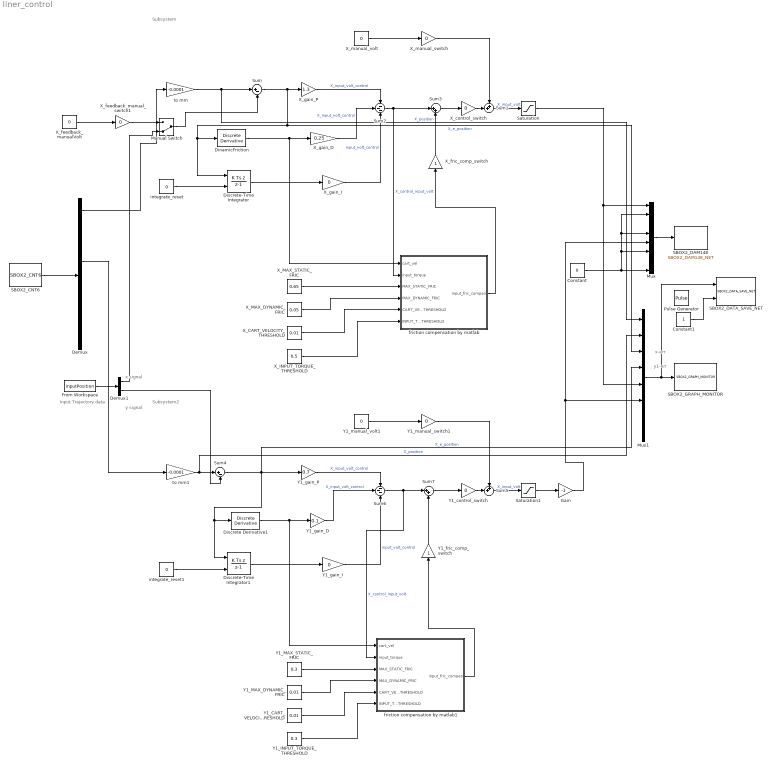
== matlab function liner_control/friction compensation by matlab ==
function input_fric_compen = fcn(cart_vel, input_torque, MAX_STATIC_FRIC, MAX_DYNAMIC_FRIC, CART_VELOCITY_THRESHOLD, INPUT_TORQUE_THRESHOLD)

input_fric_compen = zeros(1);

if abs(cart_vel) < CART_VELOCITY_THRESHOLD
    if input_torque > INPUT_TORQUE_THRESHOLD
        input_fric_compen = MAX_STATIC_FRIC * 0.9;
    else
        if input_torque < -INPUT_TORQUE_THRESHOLD
            input_fric_compen = - MAX_STATIC_FRIC * 0.9;
        else
            input_fric_compen = 0.0;
        end
    end
else
    if cart_vel > 0.0
        input_fric_compen = MAX_DYNAMIC_FRIC * 0.9;
    elseif cart_vel < 0.0
        input_fric_compen = - MAX_DYNAMIC_FRIC * 0.9;
    end
end

end

== matlab function liner_control/friction compensation by matlab1 ==
function input_fric_compen = fcn(cart_vel, input_torque, MAX_STATIC_FRIC, MAX_DYNAMIC_FRIC, CART_VELOCITY_THRESHOLD, INPUT_TORQUE_THRESHOLD)

input_fric_compen = zeros(1);

if abs(cart_vel) < CART_VELOCITY_THRESHOLD
    if input_torque > INPUT_TORQUE_THRESHOLD
        input_fric_compen = MAX_STATIC_FRIC * 0.9;
    else
        if input_torque < -INPUT_TORQUE_THRESHOLD
            input_fric_compen = - MAX_STATIC_FRIC * 0.9;
        else
            input_fric_compen = 0.0;
        end
    end
else
    if cart_vel > 0.0
        input_fric_compen = MAX_DYNAMIC_FRIC * 0.9;
    elseif cart_vel < 0.0
        input_fric_compen = - MAX_DYNAMIC_FRIC * 0.9;
    end
end

end

/*
 * liner_control.c
 *
 * Academic License - for use in teaching, academic research, and meeting
 * course requirements at degree granting institutions only.  Not for
 * government, commercial, or other organizational use.
 *
 * Code generation for model "liner_control".
 *
 * Model version              : 1.126
 * Simulink Coder version : 9.2 (R2019b) 18-Jul-2019
 * C source code generated on : Thu Jan 20 12:52:32 2022
 *
 * Target selection: sbox2.tlc
 * Note: GRT includes extra infrastructure and instrumentation for prototyping
 * Embedded hardware selection: 32-bit Generic
 * Code generation objectives: Unspecified
 * Validation result: Not run
 */

#include "liner_control_capi.h"
#include "liner_control.h"
#include "liner_control_private.h"

/* Block signals (default storage) */
B_liner_control_T liner_control_B;

/* Block states (default storage) */
DW_liner_control_T liner_control_DW;

/* Real-time model */
RT_MODEL_liner_control_T liner_control_M_;
RT_MODEL_liner_control_T *const liner_control_M = &liner_control_M_;
static void rate_scheduler(void);

/*
 *   This function updates active task flag for each subrate.
 * The function is called at model base rate, hence the
 * generated code self-manages all its subrates.
 */
static void rate_scheduler(void)
{
  /* Compute which subrates run during the next base time step.  Subrates
   * are an integer multiple of the base rate counter.  Therefore, the subtask
   * counter is reset when it reaches its limit (zero means run).
   */
  (liner_control_M->Timing.TaskCounters.TID[1])++;
  if ((liner_control_M->Timing.TaskCounters.TID[1]) > 99) {/* Sample time: [1.0s, 0.0s] */
    liner_control_M->Timing.TaskCounters.TID[1] = 0;
  }

  liner_control_M->Timing.sampleHits[1] =
    (liner_control_M->Timing.TaskCounters.TID[1] == 0);
}

/*
 * Output and update for atomic system:
 *    '<Root>/friction compensation by matlab'
 *    '<Root>/friction compensation by matlab1'
 */
void li_frictioncompensationbymatlab(real_T rtu_cart_vel, real_T
  rtu_input_torque, real_T rtu_MAX_STATIC_FRIC, real_T rtu_MAX_DYNAMIC_FRIC,
  real_T rtu_CART_VELOCITY_THRESHOLD, real_T rtu_INPUT_TORQUE_THRESHOLD,
  B_frictioncompensationbymatla_T *localB)
{
  /* MATLAB Function 'friction compensation by matlab': '<S7>:1' */
  /* '<S7>:1:3' */
  localB->input_fric_compen = 0.0;
  if (fabs(rtu_cart_vel) < rtu_CART_VELOCITY_THRESHOLD) {
    /* '<S7>:1:5' */
    if (rtu_input_torque > rtu_INPUT_TORQUE_THRESHOLD) {
      /* '<S7>:1:6' */
      /* '<S7>:1:7' */
      localB->input_fric_compen = rtu_MAX_STATIC_FRIC * 0.9;
    } else if (rtu_input_torque < -rtu_INPUT_TORQUE_THRESHOLD) {
      /* '<S7>:1:9' */
      /* '<S7>:1:10' */
      localB->input_fric_compen = -rtu_MAX_STATIC_FRIC * 0.9;
    } else {
      /* '<S7>:1:12' */
      localB->input_fric_compen = 0.0;
    }
  } else if (rtu_cart_vel > 0.0) {
    /* '<S7>:1:16' */
    /* '<S7>:1:17' */
    localB->input_fric_compen = rtu_MAX_DYNAMIC_FRIC * 0.9;
  } else {
    if (rtu_cart_vel < 0.0) {
      /* '<S7>:1:18' */
      /* '<S7>:1:19' */
      localB->input_fric_compen = -rtu_MAX_DYNAMIC_FRIC * 0.9;
    }
  }
}

/* Model step function */
void liner_control_step(void)
{
  real_T y;

  /* Gain: '<Root>/X_manual_switch' incorporates:
   *  Constant: '<Root>/X_manual_volt'
   */
  liner_control_B.X_manual_switch = liner_control_P.X_manual_switch_Gain *
    liner_control_P.X_manual_volt_Value;

  /* S-Function (udcm6_sep): '<S3>/icounter' */

  /* Level2 S-Function Block: '<S3>/icounter' (udcm6_sep) */
  {
    SimStruct *rts = liner_control_M->childSfunctions[0];
    sfcnOutputs(rts,0);
  }

  /* Gain: '<Root>/to mm' */
  liner_control_B.X_position = liner_control_P.tomm_Gain *
    liner_control_B.icounter[0];

  /* FromWorkspace: '<Root>/From Workspace' */
  {
    real_T *pDataValues = (real_T *)
      liner_control_DW.FromWorkspace_PWORK.DataPtr;
    real_T *pTimeValues = (real_T *)
      liner_control_DW.FromWorkspace_PWORK.TimePtr;
    int_T currTimeIndex = liner_control_DW.FromWorkspace_IWORK.PrevIndex;
    real_T t = liner_control_M->Timing.t[0];

    /* Get index */
    if (t <= pTimeValues[0]) {
      currTimeIndex = 0;
    } else if (t >= pTimeValues[300]) {
      currTimeIndex = 299;
    } else {
      if (t < pTimeValues[currTimeIndex]) {
        while (t < pTimeValues[currTimeIndex]) {
          currTimeIndex--;
        }
      } else {
        while (t >= pTimeValues[currTimeIndex + 1]) {
          currTimeIndex++;
        }
      }
    }

    liner_control_DW.FromWorkspace_IWORK.PrevIndex = currTimeIndex;

    /* Post output */
    {
      real_T t1 = pTimeValues[currTimeIndex];
      real_T t2 = pTimeValues[currTimeIndex + 1];
      if (t1 == t2) {
        if (t < t1) {
          {
            int_T elIdx;
            for (elIdx = 0; elIdx < 2; ++elIdx) {
              (&liner_control_B.FromWorkspace[0])[elIdx] =
                pDataValues[currTimeIndex];
              pDataValues += 301;
            }
          }
        } else {
          {
            int_T elIdx;
            for (elIdx = 0; elIdx < 2; ++elIdx) {
              (&liner_control_B.FromWorkspace[0])[elIdx] =
                pDataValues[currTimeIndex + 1];
              pDataValues += 301;
            }
          }
        }
      } else {
        real_T f1 = (t2 - t) / (t2 - t1);
        real_T f2 = 1.0 - f1;
        real_T d1;
        real_T d2;
        int_T TimeIndex= currTimeIndex;

        {
          int_T elIdx;
          for (elIdx = 0; elIdx < 2; ++elIdx) {
            d1 = pDataValues[TimeIndex];
            d2 = pDataValues[TimeIndex + 1];
            (&liner_control_B.FromWorkspace[0])[elIdx] = (real_T) rtInterpolate
              (d1, d2, f1, f2);
            pDataValues += 301;
          }
        }
      }
    }
  }

  /* ManualSwitch: '<Root>/Manual Switch' */
  if (liner_control_P.ManualSwitch_CurrentSetting == 1) {
    /* Gain: '<Root>/X_feedback_manual_switch1' incorporates:
     *  Constant: '<Root>/X_feedback_manualVolt'
     */
    liner_control_B.X_feedback_manual_switch1 =
      liner_control_P.X_feedback_manual_switch1_Gain *
      liner_control_P.X_feedback_manualVolt_Value;
    liner_control_B.ManualSwitch = liner_control_B.X_feedback_manual_switch1;
  } else {
    liner_control_B.ManualSwitch = liner_control_B.FromWorkspace[0];
  }

  /* End of ManualSwitch: '<Root>/Manual Switch' */

  /* Sum: '<Root>/Sum' */
  liner_control_B.X_e_position = liner_control_B.X_position -
    liner_control_B.ManualSwitch;

  /* Gain: '<Root>/X_gain_P' */
  liner_control_B.X_input_volt_control = liner_control_P.X_gain_P_Gain *
    liner_control_B.X_e_position;

  /* SampleTimeMath: '<S1>/TSamp'
   *
   * About '<S1>/TSamp':
   *  y = u * K where K = 1 / ( w * Ts )
   */
  liner_control_B.TSamp = liner_control_B.X_e_position *
    liner_control_P.TSamp_WtEt;

  /* UnitDelay: '<S1>/UD' */
  liner_control_B.Uk1 = liner_control_DW.UD_DSTATE;

  /* Sum: '<S1>/Diff' */
  liner_control_B.Diff = liner_control_B.TSamp - liner_control_B.Uk1;

  /* Gain: '<Root>/X_gain_D' */
  liner_control_B.X_input_volt_control_a = liner_control_P.X_gain_D_Gain *
    liner_control_B.Diff;

  /* DiscreteIntegrator: '<Root>/Discrete-Time Integrator' incorporates:
   *  Constant: '<Root>/integrate_reset'
   */
  if ((liner_control_P.integrate_reset_Value > 0.0) &&
      (liner_control_DW.DiscreteTimeIntegrator_PrevRese <= 0)) {
    liner_control_DW.DiscreteTimeIntegrator_DSTATE =
      liner_control_P.DiscreteTimeIntegrator_IC;
  }

  liner_control_B.DiscreteTimeIntegrator =
    liner_control_P.DiscreteTimeIntegrator_gainval *
    liner_control_B.X_e_position +
    liner_control_DW.DiscreteTimeIntegrator_DSTATE;

  /* End of DiscreteIntegrator: '<Root>/Discrete-Time Integrator' */

  /* Gain: '<Root>/X_gain_I' */
  liner_control_B.input_volt_control = liner_control_P.X_gain_I_Gain *
    liner_control_B.DiscreteTimeIntegrator;

  /* Sum: '<Root>/Sum2' */
  liner_control_B.X_control_input_volt = ((0.0 -
    liner_control_B.X_input_volt_control) -
    liner_control_B.X_input_volt_control_a) - liner_control_B.input_volt_control;

  /* MATLAB Function: '<Root>/friction compensation by matlab' incorporates:
   *  Constant: '<Root>/X_CART_VELOCITY_THRESHOLD'
   *  Constant: '<Root>/X_INPUT_TORQUE_THRESHOLD'
   *  Constant: '<Root>/X_MAX_DYNAMIC_FRIC'
   *  Constant: '<Root>/X_MAX_STATIC_FRIC'
   */
  li_frictioncompensationbymatlab(liner_control_B.Diff,
    liner_control_B.X_control_input_volt,
    liner_control_P.X_MAX_STATIC_FRIC_Value,
    liner_control_P.X_MAX_DYNAMIC_FRIC_Value,
    liner_control_P.X_CART_VELOCITY_THRESHOLD_Value,
    liner_control_P.X_INPUT_TORQUE_THRESHOLD_Value,
    &liner_control_B.sf_frictioncompensationbymatlab);

  /* Gain: '<Root>/X_fric_comp_switch' */
  liner_control_B.X_fric_comp_switch = liner_control_P.X_fric_comp_switch_Gain *
    liner_control_B.sf_frictioncompensationbymatlab.input_fric_compen;

  /* Sum: '<Root>/Sum3' */
  liner_control_B.Sum3 = liner_control_B.X_control_input_volt +
    liner_control_B.X_fric_comp_switch;

  /* Gain: '<Root>/X_control_switch' */
  liner_control_B.X_control_switch = liner_control_P.X_control_switch_Gain *
    liner_control_B.Sum3;

  /* Sum: '<Root>/Sum1' */
  liner_control_B.X_input_volt = liner_control_B.X_manual_switch +
    liner_control_B.X_control_switch;

  /* Saturate: '<Root>/Saturation' */
  if (liner_control_B.X_input_volt > liner_control_P.Saturation_UpperSat) {
    liner_control_B.Saturation = liner_control_P.Saturation_UpperSat;
  } else if (liner_control_B.X_input_volt < liner_control_P.Saturation_LowerSat)
  {
    liner_control_B.Saturation = liner_control_P.Saturation_LowerSat;
  } else {
    liner_control_B.Saturation = liner_control_B.X_input_volt;
  }

  /* End of Saturate: '<Root>/Saturation' */

  /* Gain: '<Root>/Y1_manual_switch1' incorporates:
   *  Constant: '<Root>/Y1_manual_volt1'
   */
  liner_control_B.Y1_manual_switch1 = liner_control_P.Y1_manual_switch1_Gain *
    liner_control_P.Y1_manual_volt1_Value;

  /* Gain: '<Root>/to mm1' */
  liner_control_B.X_position_o = liner_control_P.tomm1_Gain *
    liner_control_B.icounter[2];

  /* Sum: '<Root>/Sum4' */
  liner_control_B.X_e_position_f = liner_control_B.X_position_o -
    liner_control_B.FromWorkspace[1];

  /* Gain: '<Root>/Y1_gain_P' */
  liner_control_B.X_input_volt_control_o = liner_control_P.Y1_gain_P_Gain *
    liner_control_B.X_e_position_f;

  /* SampleTimeMath: '<S2>/TSamp'
   *
   * About '<S2>/TSamp':
   *  y = u * K where K = 1 / ( w * Ts )
   */
  liner_control_B.TSamp_g = liner_control_B.X_e_position_f *
    liner_control_P.TSamp_WtEt_f;

  /* UnitDelay: '<S2>/UD' */
  liner_control_B.Uk1_a = liner_control_DW.UD_DSTATE_l;

  /* Sum: '<S2>/Diff' */
  liner_control_B.Diff_p = liner_control_B.TSamp_g - liner_control_B.Uk1_a;

  /* Gain: '<Root>/Y1_gain_D' */
  liner_control_B.X_input_volt_control_n = liner_control_P.Y1_gain_D_Gain *
    liner_control_B.Diff_p;

  /* DiscreteIntegrator: '<Root>/Discrete-Time Integrator1' incorporates:
   *  Constant: '<Root>/integrate_reset1'
   */
  if ((liner_control_P.integrate_reset1_Value > 0.0) &&
      (liner_control_DW.DiscreteTimeIntegrator1_PrevRes <= 0)) {
    liner_control_DW.DiscreteTimeIntegrator1_DSTATE =
      liner_control_P.DiscreteTimeIntegrator1_IC;
  }

  liner_control_B.DiscreteTimeIntegrator1 =
    liner_control_P.DiscreteTimeIntegrator1_gainval *
    liner_control_B.X_e_position_f +
    liner_control_DW.DiscreteTimeIntegrator1_DSTATE;

  /* End of DiscreteIntegrator: '<Root>/Discrete-Time Integrator1' */

  /* Gain: '<Root>/Y1_gain_I' */
  liner_control_B.input_volt_control_k = liner_control_P.Y1_gain_I_Gain *
    liner_control_B.DiscreteTimeIntegrator1;

  /* Sum: '<Root>/Sum6' */
  liner_control_B.X_control_input_volt_n = ((0.0 -
    liner_control_B.X_input_volt_control_o) -
    liner_control_B.X_input_volt_control_n) -
    liner_control_B.input_volt_control_k;

  /* MATLAB Function: '<Root>/friction compensation by matlab1' incorporates:
   *  Constant: '<Root>/Y1_CART_VELOCITY_THRESHOLD'
   *  Constant: '<Root>/Y1_INPUT_TORQUE_THRESHOLD'
   *  Constant: '<Root>/Y1_MAX_DYNAMIC_FRIC'
   *  Constant: '<Root>/Y1_MAX_STATIC_FRIC'
   */
  li_frictioncompensationbymatlab(liner_control_B.Diff_p,
    liner_control_B.X_control_input_volt_n,
    liner_control_P.Y1_MAX_STATIC_FRIC_Value,
    liner_control_P.Y1_MAX_DYNAMIC_FRIC_Value,
    liner_control_P.Y1_CART_VELOCITY_THRESHOLD_Valu,
    liner_control_P.Y1_INPUT_TORQUE_THRESHOLD_Value,
    &liner_control_B.sf_frictioncompensationbymatl_o);

  /* Gain: '<Root>/Y1_fric_comp_switch' */
  liner_control_B.Y1_fric_comp_switch = liner_control_P.Y1_fric_comp_switch_Gain
    * liner_control_B.sf_frictioncompensationbymatl_o.input_fric_compen;

  /* Sum: '<Root>/Sum7' */
  liner_control_B.Sum7 = liner_control_B.X_control_input_volt_n +
    liner_control_B.Y1_fric_comp_switch;

  /* Gain: '<Root>/Y1_control_switch' */
  liner_control_B.Y1_control_switch = liner_control_P.Y1_control_switch_Gain *
    liner_control_B.Sum7;

  /* Sum: '<Root>/Sum5' */
  liner_control_B.X_input_volt_e = liner_control_B.Y1_manual_switch1 +
    liner_control_B.Y1_control_switch;

  /* Saturate: '<Root>/Saturation1' */
  if (liner_control_B.X_input_volt_e > liner_control_P.Saturation1_UpperSat) {
    liner_control_B.Saturation1 = liner_control_P.Saturation1_UpperSat;
  } else if (liner_control_B.X_input_volt_e <
             liner_control_P.Saturation1_LowerSat) {
    liner_control_B.Saturation1 = liner_control_P.Saturation1_LowerSat;
  } else {
    liner_control_B.Saturation1 = liner_control_B.X_input_volt_e;
  }

  /* End of Saturate: '<Root>/Saturation1' */

  /* Gain: '<Root>/Gain' */
  liner_control_B.Gain = liner_control_P.Gain_Gain * liner_control_B.Saturation1;

  /* Saturate: '<S4>/DAC' incorporates:
   *  Constant: '<Root>/Constant'
   */
  if (liner_control_B.Saturation > liner_control_P.DAC_UpperSat) {
    y = liner_control_P.DAC_UpperSat;
  } else if (liner_control_B.Saturation < liner_control_P.DAC_LowerSat) {
    y = liner_control_P.DAC_LowerSat;
  } else {
    y = liner_control_B.Saturation;
  }

  liner_control_B.DAC[0] = y;
  if (liner_control_P.Constant_Value > liner_control_P.DAC_UpperSat) {
    y = liner_control_P.DAC_UpperSat;
  } else if (liner_control_P.Constant_Value < liner_control_P.DAC_LowerSat) {
    y = liner_control_P.DAC_LowerSat;
  } else {
    y = liner_control_P.Constant_Value;
  }

  liner_control_B.DAC[1] = y;
  if (0.0 > liner_control_P.DAC_UpperSat) {
    y = liner_control_P.DAC_UpperSat;
  } else if (0.0 < liner_control_P.DAC_LowerSat) {
    y = liner_control_P.DAC_LowerSat;
  } else {
    y = 0.0;
  }

  liner_control_B.DAC[2] = y;
  if (liner_control_P.Constant_Value > liner_control_P.DAC_UpperSat) {
    y = liner_control_P.DAC_UpperSat;
  } else if (liner_control_P.Constant_Value < liner_control_P.DAC_LowerSat) {
    y = liner_control_P.DAC_LowerSat;
  } else {
    y = liner_control_P.Constant_Value;
  }

  liner_control_B.DAC[3] = y;
  if (liner_control_B.Gain > liner_control_P.DAC_UpperSat) {
    y = liner_control_P.DAC_UpperSat;
  } else if (liner_control_B.Gain < liner_control_P.DAC_LowerSat) {
    y = liner_control_P.DAC_LowerSat;
  } else {
    y = liner_control_B.Gain;
  }

  liner_control_B.DAC[4] = y;
  if (liner_control_P.Constant_Value > liner_control_P.DAC_UpperSat) {
    y = liner_control_P.DAC_UpperSat;
  } else if (liner_control_P.Constant_Value < liner_control_P.DAC_LowerSat) {
    y = liner_control_P.DAC_LowerSat;
  } else {
    y = liner_control_P.Constant_Value;
  }

  liner_control_B.DAC[5] = y;
  if (0.0 > liner_control_P.DAC_UpperSat) {
    y = liner_control_P.DAC_UpperSat;
  } else if (0.0 < liner_control_P.DAC_LowerSat) {
    y = liner_control_P.DAC_LowerSat;
  } else {
    y = 0.0;
  }

  liner_control_B.DAC[6] = y;
  if (liner_control_P.Constant_Value > liner_control_P.DAC_UpperSat) {
    y = liner_control_P.DAC_UpperSat;
  } else if (liner_control_P.Constant_Value < liner_control_P.DAC_LowerSat) {
    y = liner_control_P.DAC_LowerSat;
  } else {
    y = liner_control_P.Constant_Value;
  }

  liner_control_B.DAC[7] = y;

  /* End of Saturate: '<S4>/DAC' */

  /* S-Function (dam148ctrl): '<S4>/dac' */

  /* Level2 S-Function Block: '<S4>/dac' (dam148ctrl) */
  {
    SimStruct *rts = liner_control_M->childSfunctions[1];
    sfcnOutputs(rts,0);
  }

  /* Gain: '<S5>/data_ch' */
  liner_control_B.data_ch[0] = liner_control_P.data_ch_Gain *
    liner_control_B.X_position;
  liner_control_B.data_ch[1] = liner_control_P.data_ch_Gain *
    liner_control_B.X_position_o;
  liner_control_B.data_ch[2] = liner_control_P.data_ch_Gain *
    liner_control_B.X_e_position;
  liner_control_B.data_ch[3] = liner_control_P.data_ch_Gain *
    liner_control_B.X_e_position_f;
  liner_control_B.data_ch[4] = liner_control_P.data_ch_Gain *
    liner_control_B.Saturation;
  liner_control_B.data_ch[5] = liner_control_P.data_ch_Gain *
    liner_control_B.Gain;
  liner_control_B.data_ch[6] = liner_control_P.data_ch_Gain * 0.0;
  liner_control_B.data_ch[7] = liner_control_P.data_ch_Gain * 0.0;

  /* Constant: '<Root>/Constant1' */
  liner_control_B.Constant1 = liner_control_P.Constant1_Value;

  /* S-Function (to_memory_rt): '<S5>/to_memory_rt' */

  /* Level2 S-Function Block: '<S5>/to_memory_rt' (to_memory_rt) */
  {
    SimStruct *rts = liner_control_M->childSfunctions[2];
    sfcnOutputs(rts,0);
  }

  /* Gain: '<S6>/input_ch' */
  liner_control_B.input_ch[0] = liner_control_P.input_ch_Gain *
    liner_control_B.X_position;
  liner_control_B.input_ch[1] = liner_control_P.input_ch_Gain *
    liner_control_B.X_position_o;
  liner_control_B.input_ch[2] = liner_control_P.input_ch_Gain *
    liner_control_B.X_e_position;
  liner_control_B.input_ch[3] = liner_control_P.input_ch_Gain *
    liner_control_B.X_e_position_f;
  liner_control_B.input_ch[4] = liner_control_P.input_ch_Gain *
    liner_control_B.Saturation;
  liner_control_B.input_ch[5] = liner_control_P.input_ch_Gain *
    liner_control_B.Gain;
  liner_control_B.input_ch[6] = liner_control_P.input_ch_Gain * 0.0;
  liner_control_B.input_ch[7] = liner_control_P.input_ch_Gain * 0.0;

  /* S-Function (to_host_rt): '<S6>/to_host_rt' */

  /* Level2 S-Function Block: '<S6>/to_host_rt' (to_host_rt) */
  {
    SimStruct *rts = liner_control_M->childSfunctions[3];
    sfcnOutputs(rts,0);
  }

  if (liner_control_M->Timing.TaskCounters.TID[1] == 0) {
    /* DiscretePulseGenerator: '<Root>/Pulse Generator' */
    liner_control_B.PulseGenerator = (liner_control_DW.clockTickCounter <
      liner_control_P.PulseGenerator_Duty) && (liner_control_DW.clockTickCounter
      >= 0) ? liner_control_P.PulseGenerator_Amp : 0.0;
    if (liner_control_DW.clockTickCounter >=
        liner_control_P.PulseGenerator_Period - 1.0) {
      liner_control_DW.clockTickCounter = 0;
    } else {
      liner_control_DW.clockTickCounter++;
    }

    /* End of DiscretePulseGenerator: '<Root>/Pulse Generator' */
  }

  /* Update for UnitDelay: '<S1>/UD' */
  liner_control_DW.UD_DSTATE = liner_control_B.TSamp;

  /* Update for DiscreteIntegrator: '<Root>/Discrete-Time Integrator' incorporates:
   *  Constant: '<Root>/integrate_reset'
   */
  liner_control_DW.DiscreteTimeIntegrator_DSTATE =
    liner_control_B.DiscreteTimeIntegrator;
  if (liner_control_P.integrate_reset_Value > 0.0) {
    liner_control_DW.DiscreteTimeIntegrator_PrevRese = 1;
  } else if (liner_control_P.integrate_reset_Value < 0.0) {
    liner_control_DW.DiscreteTimeIntegrator_PrevRese = -1;
  } else if (liner_control_P.integrate_reset_Value == 0.0) {
    liner_control_DW.DiscreteTimeIntegrator_PrevRese = 0;
  } else {
    liner_control_DW.DiscreteTimeIntegrator_PrevRese = 2;
  }

  /* End of Update for DiscreteIntegrator: '<Root>/Discrete-Time Integrator' */

  /* Update for UnitDelay: '<S2>/UD' */
  liner_control_DW.UD_DSTATE_l = liner_control_B.TSamp_g;

  /* Update for DiscreteIntegrator: '<Root>/Discrete-Time Integrator1' incorporates:
   *  Constant: '<Root>/integrate_reset1'
   */
  liner_control_DW.DiscreteTimeIntegrator1_DSTATE =
    liner_control_B.DiscreteTimeIntegrator1;
  if (liner_control_P.integrate_reset1_Value > 0.0) {
    liner_control_DW.DiscreteTimeIntegrator1_PrevRes = 1;
  } else if (liner_control_P.integrate_reset1_Value < 0.0) {
    liner_control_DW.DiscreteTimeIntegrator1_PrevRes = -1;
  } else if (liner_control_P.integrate_reset1_Value == 0.0) {
    liner_control_DW.DiscreteTimeIntegrator1_PrevRes = 0;
  } else {
    liner_control_DW.DiscreteTimeIntegrator1_PrevRes = 2;
  }

  /* End of Update for DiscreteIntegrator: '<Root>/Discrete-Time Integrator1' */

  /* Update absolute time for base rate */
  /* The "clockTick0" counts the number of times the code of this task has
   * been executed. The absolute time is the multiplication of "clockTick0"
   * and "Timing.stepSize0". Size of "clockTick0" ensures timer will not
   * overflow during the application lifespan selected.
   * Timer of this task consists of two 32 bit unsigned integers.
   * The two integers represent the low bits Timing.clockTick0 and the high bits
   * Timing.clockTickH0. When the low bit overflows to 0, the high bits increment.
   */
  if (!(++liner_control_M->Timing.clockTick0)) {
    ++liner_control_M->Timing.clockTickH0;
  }

  liner_control_M->Timing.t[0] = liner_control_M->Timing.clockTick0 *
    liner_control_M->Timing.stepSize0 + liner_control_M->Timing.clockTickH0 *
    liner_control_M->Timing.stepSize0 * 4294967296.0;
  rate_scheduler();
}
